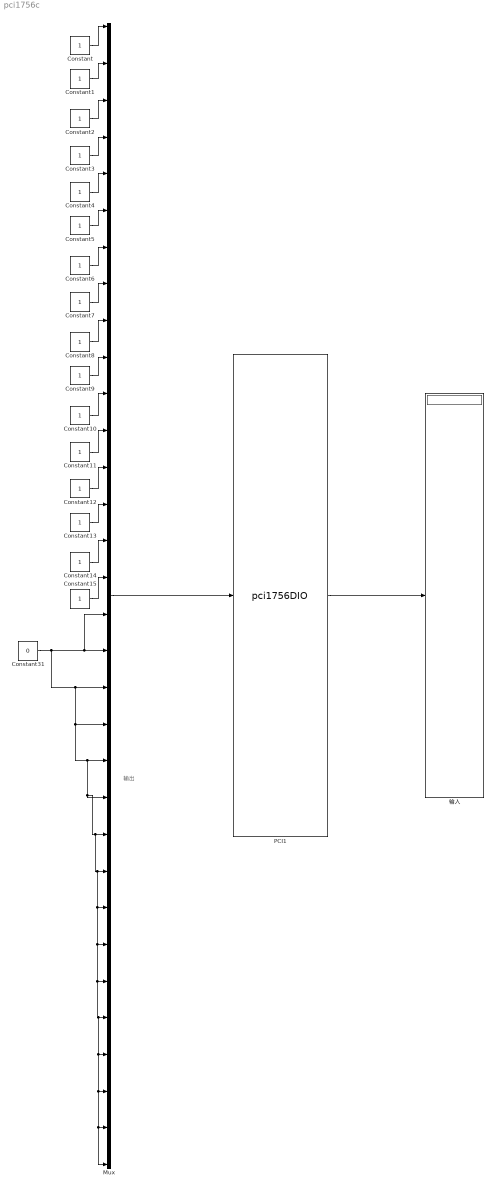
/*
 * pci1756c.c
 *
 * Code generation for model "pci1756c".
 *
 * Model version              : 1.9
 * Simulink Coder version : 8.11 (R2016b) 25-Aug-2016
 * C source code generated on : Mon Jul 12 22:23:00 2021
 *
 * Target selection: slrt.tlc
 * Note: GRT includes extra infrastructure and instrumentation for prototyping
 * Embedded hardware selection: Generic->32-bit x86 compatible
 * Code generation objectives: Unspecified
 * Validation result: Not run
 */

#include "rt_logging_mmi.h"
#include "pci1756c_capi.h"
#include "pci1756c.h"
#include "pci1756c_private.h"

const real_T pci1756c_RGND = 0.0;      /* real_T ground */

/* Block signals (auto storage) */
B_pci1756c_T pci1756c_B;

/* Block states (auto storage) */
DW_pci1756c_T pci1756c_DW;

/* Real-time model */
RT_MODEL_pci1756c_T pci1756c_M_;
RT_MODEL_pci1756c_T *const pci1756c_M = &pci1756c_M_;

/* Model output function */
static void pci1756c_output(void)
{
  /* Level2 S-Function Block: '<Root>/PCI1' (pci1756DIO) */
  {
    SimStruct *rts = pci1756c_M->childSfunctions[0];
    sfcnOutputs(rts, 0);
  }

  /* Constant: '<Root>/Constant' */
  pci1756c_B.Constant = pci1756c_P.Constant_Value;

  /* Constant: '<Root>/Constant1' */
  pci1756c_B.Constant1 = pci1756c_P.Constant1_Value;

  /* Constant: '<Root>/Constant10' */
  pci1756c_B.Constant10 = pci1756c_P.Constant10_Value;

  /* Constant: '<Root>/Constant11' */
  pci1756c_B.Constant11 = pci1756c_P.Constant11_Value;

  /* Constant: '<Root>/Constant12' */
  pci1756c_B.Constant12 = pci1756c_P.Constant12_Value;

  /* Constant: '<Root>/Constant13' */
  pci1756c_B.Constant13 = pci1756c_P.Constant13_Value;

  /* Constant: '<Root>/Constant14' */
  pci1756c_B.Constant14 = pci1756c_P.Constant14_Value;

  /* Constant: '<Root>/Constant15' */
  pci1756c_B.Constant15 = pci1756c_P.Constant15_Value;

  /* Constant: '<Root>/Constant2' */
  pci1756c_B.Constant2 = pci1756c_P.Constant2_Value;

  /* Constant: '<Root>/Constant3' */
  pci1756c_B.Constant3 = pci1756c_P.Constant3_Value;

  /* Constant: '<Root>/Constant31' */
  pci1756c_B.Constant31 = pci1756c_P.Constant31_Value;

  /* Constant: '<Root>/Constant4' */
  pci1756c_B.Constant4 = pci1756c_P.Constant4_Value;

  /* Constant: '<Root>/Constant5' */
  pci1756c_B.Constant5 = pci1756c_P.Constant5_Value;

  /* Constant: '<Root>/Constant6' */
  pci1756c_B.Constant6 = pci1756c_P.Constant6_Value;

  /* Constant: '<Root>/Constant7' */
  pci1756c_B.Constant7 = pci1756c_P.Constant7_Value;

  /* Constant: '<Root>/Constant8' */
  pci1756c_B.Constant8 = pci1756c_P.Constant8_Value;

  /* Constant: '<Root>/Constant9' */
  pci1756c_B.Constant9 = pci1756c_P.Constant9_Value;
}

/* Model update function */
static void pci1756c_update(void)
{
  /* Update absolute time for base rate */
  /* The "clockTick0" counts the number of times the code of this task has
   * been executed. The absolute time is the multiplication of "clockTick0"
   * and "Timing.stepSize0". Size of "clockTick0" ensures timer will not
   * overflow during the application lifespan selected.
   * Timer of this task consists of two 32 bit unsigned integers.
   * The two integers represent the low bits Timing.clockTick0 and the high bits
   * Timing.clockTickH0. When the low bit overflows to 0, the high bits increment.
   */
  if (!(++pci1756c_M->Timing.clockTick0)) {
    ++pci1756c_M->Timing.clockTickH0;
  }

  pci1756c_M->Timing.t[0] = pci1756c_M->Timing.clockTick0 *
    pci1756c_M->Timing.stepSize0 + pci1756c_M->Timing.clockTickH0 *
    pci1756c_M->Timing.stepSize0 * 4294967296.0;
}
